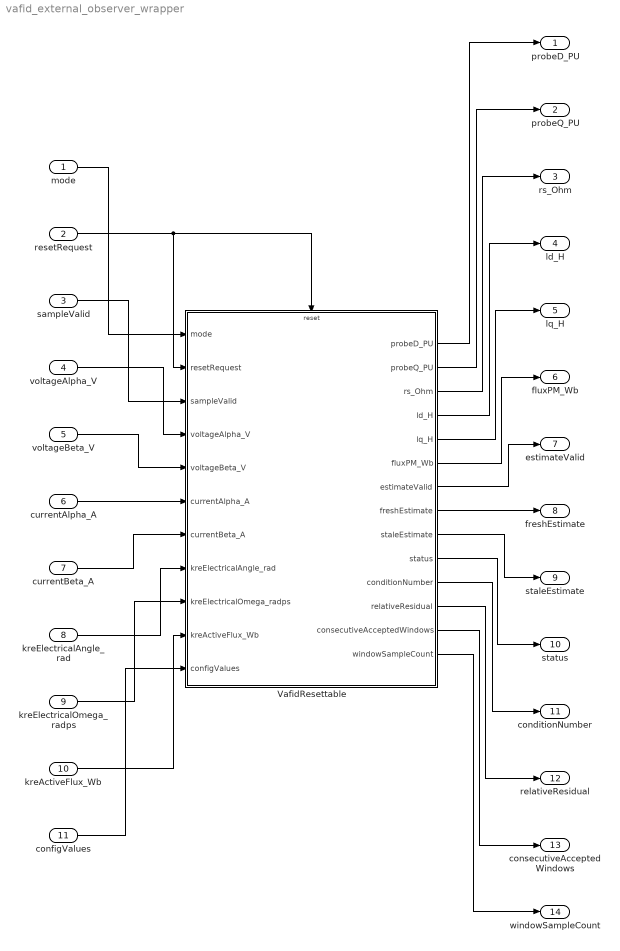
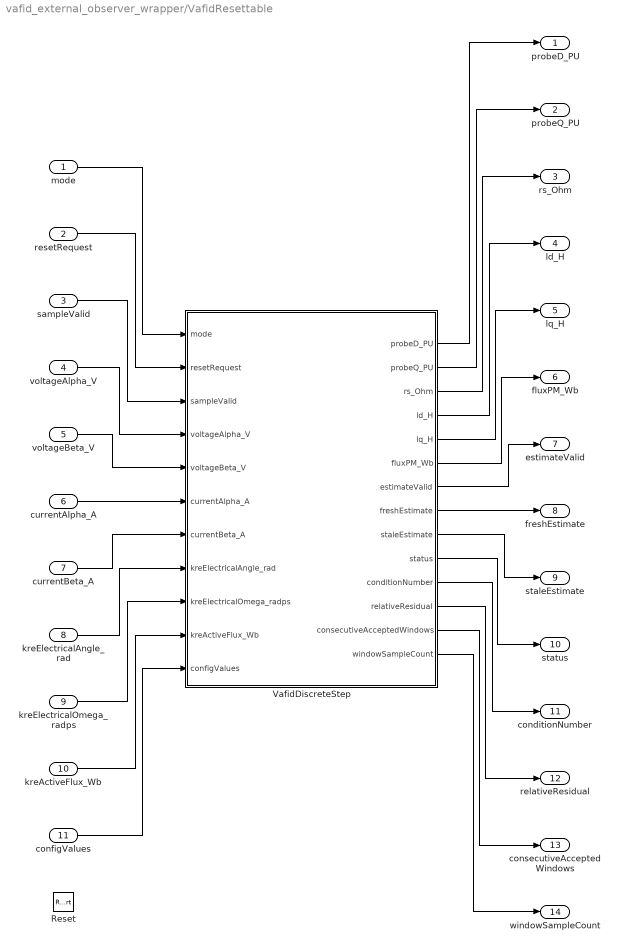
== matlab function vafid_external_observer_wrapper/VafidResettable/VafidDiscreteStep ==
function [probeD_PU, probeQ_PU, rs_Ohm, ld_H, lq_H, fluxPM_Wb, estimateValid, freshEstimate, staleEstimate, status, conditionNumber, relativeResidual, consecutiveAcceptedWindows, windowSampleCount] = fcn(mode, resetRequest, sampleValid, voltageAlpha_V, voltageBeta_V, currentAlpha_A, currentBeta_A, kreElectricalAngle_rad, kreElectricalOmega_radps, kreActiveFlux_Wb, configValues)
%#codegen
[probeD_PU, probeQ_PU, rs_Ohm, ld_H, lq_H, fluxPM_Wb, estimateValid, freshEstimate, staleEstimate, status, conditionNumber, relativeResidual, consecutiveAcceptedWindows, windowSampleCount] = vafid_external_observer_wrapper_step(mode, resetRequest, sampleValid, voltageAlpha_V, voltageBeta_V, currentAlpha_A, currentBeta_A, kreElectricalAngle_rad, kreElectricalOmega_radps, kreActiveFlux_Wb, configValues);
end

/*
 * Academic License - for use in teaching, academic research, and meeting
 * course requirements at degree granting institutions only.  Not for
 * government, commercial, or other organizational use.
 *
 * File: vafid_external_observer_wrapper.c
 *
 * Code generated for Simulink model 'vafid_external_observer_wrapper'.
 *
 * Model version                  : 1.2
 * Simulink Coder version         : 26.1 (R2026a) 20-Nov-2025
 * C/C++ source code generated on : Fri Aug 28 00:13:18 2026
 *
 * Target selection: ert.tlc
 * Embedded hardware selection: ARM Compatible->ARM Cortex-M
 * Code generation objectives: Unspecified
 * Validation result: Not run
 */

#include "vafid_external_observer_wrapper.h"
#include "rtwtypes.h"
#include "vafid_external_observer_wrapper_types.h"
#include "vafid_external_observer_wrapper_private.h"
#include "rt_nonfinite.h"
#include <math.h>
#include <string.h>
#include "zero_crossing_types.h"

/* Block states (default storage) */
DW_vafid_external_observer_wr_T vafid_external_observer_wrap_DW;

/* Previous zero-crossings (trigger) states */
PrevZCX_vafid_external_observ_T vafid_external_observer_PrevZCX;

/* External inputs (root inport signals with default storage) */
ExtU_vafid_external_observer__T vafid_external_observer_wrapp_U;

/* External outputs (root outports fed by signals with default storage) */
ExtY_vafid_external_observer__T vafid_external_observer_wrapp_Y;

/* Real-time model */
static RT_MODEL_vafid_external_obser_T vafid_external_observer_wrap_M_;
RT_MODEL_vafid_external_obser_T *const vafid_external_observer_wrap_M =
  &vafid_external_observer_wrap_M_;

/* Forward declaration for local functions */
static boolean_T vafid_localConfigurationIsValid(const
  sXUMNpzAt0y7k62cD7EcU0C_vafid_T *config);
static real32_T vafid_external_observer_wra_mod(real32_T x);
static void vafid_external_observer_wra_sum(const real32_T x[9], real32_T y[3]);
static real32_T vafid_external_observer_maximum(const real32_T x[3]);
static void vafid_exte_localSolveParameters(const creal32_T voltageD[2], const
  creal32_T voltageQ[2], const creal32_T currentD[2], const creal32_T currentQ[2],
  real32_T meanElectricalOmega_radps, real32_T config_probeD_Frequency_Hz,
  real32_T config_probeQ_Frequency_Hz, real32_T candidate[3], boolean_T *solved,
  real32_T *conditionNumber, real32_T *relativeResidual);
static void v_vafid_discrete_reference_step(uint8_T mode, boolean_T resetRequest,
  boolean_T sampleValid, real32_T voltageAlpha_V, real32_T voltageBeta_V,
  real32_T currentAlpha_A, real32_T currentBeta_A, real32_T
  kreElectricalAngle_rad, real32_T kreElectricalOmega_radps, real32_T
  kreActiveFlux_Wb, const sXUMNpzAt0y7k62cD7EcU0C_vafid_T *config, real32_T
  *probeD_PU, real32_T *probeQ_PU, real32_T *rs_Ohm, real32_T *ld_H, real32_T
  *lq_H, real32_T *fluxPM_Wb, boolean_T *estimateValid, boolean_T *freshEstimate,
  boolean_T *staleEstimate, uint8_T *status, real32_T *conditionNumber, real32_T
  *relativeResidual, uint16_T *consecutiveAcceptedWindows, uint32_T
  *windowSampleCount);
real32_T rt_roundf_snf(real32_T u)
{
  real32_T y;
  if (fabsf(u) < 8.388608E+6F) {
    if (u >= 0.5F) {
      y = floorf(u + 0.5F);
    } else if (u > -0.5F) {
      y = u * 0.0F;
    } else {
      y = ceilf(u - 0.5F);
    }
  } else {
    y = u;
  }

  return y;
}

/* Function for MATLAB Function: '<S1>/VafidDiscreteStep' */
static boolean_T vafid_localConfigurationIsValid(const
  sXUMNpzAt0y7k62cD7EcU0C_vafid_T *config)
{
  return !rtIsInfF(config->sampleTime_s) && !rtIsNaNF(config->sampleTime_s) &&
    ((config->sampleTime_s > 0.0F) && (!rtIsInfF(config->probeD_Frequency_Hz) &&
      !rtIsNaNF(config->probeD_Frequency_Hz) && ((config->probeD_Frequency_Hz >
        0.0F) && (!rtIsInfF(config->probeQ_Frequency_Hz) && !rtIsNaNF
                  (config->probeQ_Frequency_Hz) && ((config->probeQ_Frequency_Hz
          > 0.0F) && (config->probeD_Frequency_Hz != config->probeQ_Frequency_Hz)
         && (!rtIsInfF(config->probeD_Amplitude_PU) && !rtIsNaNF
             (config->probeD_Amplitude_PU) && (!rtIsInfF
           (config->probeQ_Amplitude_PU) && !rtIsNaNF
           (config->probeQ_Amplitude_PU) && (!rtIsInfF
            (config->probeD_MaxAmplitude_PU) && !rtIsNaNF
            (config->probeD_MaxAmplitude_PU) && ((config->probeD_MaxAmplitude_PU
              > 0.0F) && (!rtIsInfF(config->probeQ_MaxAmplitude_PU) && !rtIsNaNF
              (config->probeQ_MaxAmplitude_PU) &&
              ((config->probeQ_MaxAmplitude_PU > 0.0F) &&
               (config->windowLength_samples > 0U) &&
               (config->requiredAcceptedWindows > 0) &&
               (config->staleRejectedWindows > 0) && (!rtIsInfF
    (config->parameterFusion) && !rtIsNaNF(config->parameterFusion) &&
    ((config->parameterFusion > 0.0F) && (config->parameterFusion <= 1.0F) &&
     (!rtIsInfF(config->fluxFusion) && !rtIsNaNF(config->fluxFusion) &&
      ((config->fluxFusion > 0.0F) && (config->fluxFusion <= 1.0F) && (!rtIsInfF
    (config->conditionLimit) && !rtIsNaNF(config->conditionLimit) &&
    ((config->conditionLimit > 1.0F) && (!rtIsInfF(config->relativeResidualLimit)
    && !rtIsNaNF(config->relativeResidualLimit) &&
    ((config->relativeResidualLimit > 0.0F) && (config->minimumRs_Ohm > 0.0F) &&
     (config->maximumRs_Ohm > config->minimumRs_Ohm) && (config->minimumLd_H >
    0.0F) && (config->maximumLd_H > config->minimumLd_H) && (config->minimumLq_H
    > 0.0F) && (config->maximumLq_H > config->minimumLq_H) &&
     (config->minimumFluxPM_Wb > 0.0F) && (config->maximumFluxPM_Wb >
    config->minimumFluxPM_Wb))))))))))))))))))));
}

/* Function for MATLAB Function: '<S1>/VafidDiscreteStep' */
static real32_T vafid_external_observer_wra_mod(real32_T x)
{
  real32_T r;
  if (rtIsNaNF(x)) {
    r = (rtNaNF);
  } else if (rtIsInfF(x)) {
    r = (rtNaNF);
  } else {
    real32_T q;
    q = fabsf(x / 6.2831855F);
    if (fabsf(q - floorf(q + 0.5F)) > 1.1920929E-7F * q) {
      r = fmodf(x, 6.2831855F);
    } else {
      r = 0.0F;
    }

    if (r == 0.0F) {
      r = 0.0F;
    } else if (r < 0.0F) {
      r += 6.2831855F;
    }
  }

  return r;
}

/* Function for MATLAB Function: '<S1>/VafidDiscreteStep' */
static void vafid_external_observer_wra_sum(const real32_T x[9], real32_T y[3])
{
  int32_T xi;
  for (xi = 0; xi < 3; xi++) {
    int32_T xpageoffset;
    xpageoffset = xi * 3;
    y[xi] = (x[xpageoffset + 1] + x[xpageoffset]) + x[xpageoffset + 2];
  }
}

/* Function for MATLAB Function: '<S1>/VafidDiscreteStep' */
static real32_T vafid_external_observer_maximum(const real32_T x[3])
{
  int32_T idx;
  int32_T k;
  real32_T ex;
  if (!rtIsNaNF(x[0])) {
    idx = 1;
  } else {
    boolean_T exitg1;
    idx = 0;
    k = 2;
    exitg1 = false;
    while (!exitg1 && (k < 4)) {
      if (!rtIsNaNF(x[k - 1])) {
        idx = k;
        exitg1 = true;
      } else {
        k++;
      }
    }
  }

  if (idx == 0) {
    ex = x[0];
  } else {
    ex = x[idx - 1];
    for (k = idx + 1; k < 4; k++) {
      real32_T x_0;
      x_0 = x[k - 1];
      if (ex < x_0) {
        ex = x_0;
      }
    }
  }

  return ex;
}

/* Function for MATLAB Function: '<S1>/VafidDiscreteStep' */
static void vafid_exte_localSolveParameters(const creal32_T voltageD[2], const
  creal32_T voltageQ[2], const creal32_T currentD[2], const creal32_T currentQ[2],
  real32_T meanElectricalOmega_radps, real32_T config_probeD_Frequency_Hz,
  real32_T config_probeQ_Frequency_Hz, real32_T candidate[3], boolean_T *solved,
  real32_T *conditionNumber, real32_T *relativeResidual)
{
  int32_T b_k;
  int32_T columnIndex;
  int32_T k;
  real32_T normalMatrix_tmp[24];
  real32_T regression[24];
  real32_T scaledRegression[24];
  real32_T b_y[9];
  real32_T inverseNormalMatrix[9];
  real32_T normalMatrix[9];
  real32_T observation[8];
  real32_T residual[8];
  real32_T columnScale[3];
  real32_T tmp[3];
  real32_T tmp_0[3];
  real32_T c13;
  real32_T determinant;
  real32_T probeOmega_radps_idx_0;
  real32_T probeOmega_radps_idx_1;
  boolean_T c[3];
  boolean_T d[3];
  boolean_T exitg1;
  boolean_T guard1;
  boolean_T y;
  candidate[0] = 0.0F;
  candidate[1] = 0.0F;
  candidate[2] = 0.0F;
  probeOmega_radps_idx_0 = 6.2831855F * config_probeD_Frequency_Hz;
  probeOmega_radps_idx_1 = 6.2831855F * config_probeQ_Frequency_Hz;
  regression[0] = currentD[0].re;
  regression[8] = -probeOmega_radps_idx_0 * currentD[0].im;
  regression[16] = -meanElectricalOmega_radps * currentQ[0].re;
  regression[1] = currentD[0].im;
  regression[9] = probeOmega_radps_idx_0 * currentD[0].re;
  regression[17] = -meanElectricalOmega_radps * currentQ[0].im;
  regression[2] = currentQ[0].re;
  regression[10] = meanElectricalOmega_radps * currentD[0].re;
  regression[18] = -probeOmega_radps_idx_0 * currentQ[0].im;
  regression[3] = currentQ[0].im;
  regression[11] = meanElectricalOmega_radps * currentD[0].im;
  regression[19] = probeOmega_radps_idx_0 * currentQ[0].re;
  observation[0] = voltageD[0].re;
  observation[1] = voltageD[0].im;
  observation[2] = voltageQ[0].re;
  observation[3] = voltageQ[0].im;
  regression[4] = currentD[1].re;
  regression[12] = -probeOmega_radps_idx_1 * currentD[1].im;
  regression[20] = -meanElectricalOmega_radps * currentQ[1].re;
  regression[5] = currentD[1].im;
  regression[13] = probeOmega_radps_idx_1 * currentD[1].re;
  regression[21] = -meanElectricalOmega_radps * currentQ[1].im;
  regression[6] = currentQ[1].re;
  regression[14] = meanElectricalOmega_radps * currentD[1].re;
  regression[22] = -probeOmega_radps_idx_1 * currentQ[1].im;
  regression[7] = currentQ[1].im;
  regression[15] = meanElectricalOmega_radps * currentD[1].im;
  regression[23] = probeOmega_radps_idx_1 * currentQ[1].re;
  observation[4] = voltageD[1].re;
  observation[5] = voltageD[1].im;
  observation[6] = voltageQ[1].re;
  observation[7] = voltageQ[1].im;
  memset(&scaledRegression[0], 0, 24U * sizeof(real32_T));
  for (columnIndex = 0; columnIndex < 3; columnIndex++) {
    for (k = 0; k < 8; k++) {
      residual[k] = fabsf(regression[(columnIndex << 3) + k]);
    }

    if (!rtIsNaNF(residual[0])) {
      k = 1;
    } else {
      k = 0;
      b_k = 2;
      exitg1 = false;
      while (!exitg1 && (b_k < 9)) {
        if (!rtIsNaNF(residual[b_k - 1])) {
          k = b_k;
          exitg1 = true;
        } else {
          b_k++;
        }
      }
    }

    if (k == 0) {
      probeOmega_radps_idx_1 = residual[0];
      columnScale[columnIndex] = residual[0];
    } else {
      probeOmega_radps_idx_1 = residual[k - 1];
      for (b_k = k + 1; b_k < 9; b_k++) {
        probeOmega_radps_idx_0 = residual[b_k - 1];
        if (probeOmega_radps_idx_1 < probeOmega_radps_idx_0) {
          probeOmega_radps_idx_1 = probeOmega_radps_idx_0;
        }
      }

      columnScale[columnIndex] = probeOmega_radps_idx_1;
    }

    if (probeOmega_radps_idx_1 > 1.0E-12F) {
      for (k = 0; k < 8; k++) {
        b_k = (columnIndex << 3) + k;
        scaledRegression[b_k] = regression[b_k] / probeOmega_radps_idx_1;
      }
    }
  }

  for (k = 0; k < 8; k++) {
    normalMatrix_tmp[3 * k] = scaledRegression[k];
    normalMatrix_tmp[3 * k + 1] = scaledRegression[k + 8];
    normalMatrix_tmp[3 * k + 2] = scaledRegression[k + 16];
  }

  for (k = 0; k < 3; k++) {
    probeOmega_radps_idx_1 = 0.0F;
    c13 = 0.0F;
    determinant = 0.0F;
    for (columnIndex = 0; columnIndex < 8; columnIndex++) {
      probeOmega_radps_idx_0 = scaledRegression[(k << 3) + columnIndex];
      probeOmega_radps_idx_1 += normalMatrix_tmp[3 * columnIndex] *
        probeOmega_radps_idx_0;
      c13 += normalMatrix_tmp[3 * columnIndex + 1] * probeOmega_radps_idx_0;
      determinant += normalMatrix_tmp[3 * columnIndex + 2] *
        probeOmega_radps_idx_0;
    }

    normalMatrix[3 * k + 2] = determinant;
    normalMatrix[3 * k + 1] = c13;
    normalMatrix[3 * k] = probeOmega_radps_idx_1;
  }

  probeOmega_radps_idx_0 = normalMatrix[4] * normalMatrix[8] - normalMatrix[5] *
    normalMatrix[7];
  probeOmega_radps_idx_1 = normalMatrix[2] * normalMatrix[7] - normalMatrix[1] *
    normalMatrix[8];
  c13 = normalMatrix[1] * normalMatrix[5] - normalMatrix[2] * normalMatrix[4];
  determinant = (normalMatrix[0] * probeOmega_radps_idx_0 + normalMatrix[3] *
                 probeOmega_radps_idx_1) + normalMatrix[6] * c13;
  guard1 = false;
  if (!rtIsInfF(determinant) && !rtIsNaNF(determinant) && (fabsf(determinant) >
       1.0E-9F)) {
    inverseNormalMatrix[0] = probeOmega_radps_idx_0 / determinant;
    inverseNormalMatrix[3] = (normalMatrix[5] * normalMatrix[6] - normalMatrix[3]
      * normalMatrix[8]) / determinant;
    inverseNormalMatrix[6] = (normalMatrix[3] * normalMatrix[7] - normalMatrix[4]
      * normalMatrix[6]) / determinant;
    inverseNormalMatrix[1] = probeOmega_radps_idx_1 / determinant;
    inverseNormalMatrix[4] = (normalMatrix[0] * normalMatrix[8] - normalMatrix[2]
      * normalMatrix[6]) / determinant;
    inverseNormalMatrix[7] = (normalMatrix[1] * normalMatrix[6] - normalMatrix[0]
      * normalMatrix[7]) / determinant;
    inverseNormalMatrix[2] = c13 / determinant;
    inverseNormalMatrix[5] = (normalMatrix[2] * normalMatrix[3] - normalMatrix[0]
      * normalMatrix[5]) / determinant;
    inverseNormalMatrix[8] = (normalMatrix[0] * normalMatrix[4] - normalMatrix[1]
      * normalMatrix[3]) / determinant;
    y = false;
    columnIndex = 0;
    exitg1 = false;
    while (!exitg1 && (columnIndex < 3)) {
      if (columnScale[columnIndex] <= 1.0E-12F) {
        y = true;
        exitg1 = true;
      } else {
        columnIndex++;
      }
    }

    if (y) {
      guard1 = true;
    } else {
      for (columnIndex = 0; columnIndex < 9; columnIndex++) {
        b_y[columnIndex] = fabsf(normalMatrix[columnIndex]);
        normalMatrix[columnIndex] = fabsf(inverseNormalMatrix[columnIndex]);
      }

      vafid_external_observer_wra_sum(b_y, tmp);
      vafid_external_observer_wra_sum(normalMatrix, tmp_0);
      *conditionNumber = sqrtf(fmaxf(vafid_external_observer_maximum(tmp) *
        vafid_external_observer_maximum(tmp_0), 0.0F));
      probeOmega_radps_idx_1 = 0.0F;
      c13 = 0.0F;
      determinant = 0.0F;
      for (k = 0; k < 8; k++) {
        probeOmega_radps_idx_0 = observation[k];
        probeOmega_radps_idx_1 += normalMatrix_tmp[3 * k] *
          probeOmega_radps_idx_0;
        c13 += normalMatrix_tmp[3 * k + 1] * probeOmega_radps_idx_0;
        determinant += normalMatrix_tmp[3 * k + 2] * probeOmega_radps_idx_0;
      }

      for (k = 0; k < 3; k++) {
        candidate[k] = ((inverseNormalMatrix[k + 3] * c13 +
                         inverseNormalMatrix[k] * probeOmega_radps_idx_1) +
                        inverseNormalMatrix[k + 6] * determinant) /
          columnScale[k];
      }

      probeOmega_radps_idx_0 = candidate[1];
      probeOmega_radps_idx_1 = candidate[0];
      c13 = candidate[2];
      for (k = 0; k < 8; k++) {
        determinant = observation[k];
        residual[k] = ((regression[k + 8] * probeOmega_radps_idx_0 +
                        regression[k] * probeOmega_radps_idx_1) + regression[k +
                       16] * c13) - determinant;
        observation[k] = determinant * determinant;
      }

      probeOmega_radps_idx_1 = observation[0];
      for (columnIndex = 0; columnIndex < 7; columnIndex++) {
        probeOmega_radps_idx_1 += observation[columnIndex + 1];
      }

      for (k = 0; k < 8; k++) {
        probeOmega_radps_idx_0 = residual[k];
        residual[k] = probeOmega_radps_idx_0 * probeOmega_radps_idx_0;
      }

      probeOmega_radps_idx_0 = residual[0];
      for (columnIndex = 0; columnIndex < 7; columnIndex++) {
        probeOmega_radps_idx_0 += residual[columnIndex + 1];
      }

      *relativeResidual = sqrtf(probeOmega_radps_idx_0) / fmaxf(sqrtf
        (probeOmega_radps_idx_1), 1.0E-12F);
      c[0] = !rtIsInfF(candidate[0]);
      d[0] = !rtIsNaNF(candidate[0]);
      c[1] = !rtIsInfF(candidate[1]);
      d[1] = !rtIsNaNF(candidate[1]);
      c[2] = !rtIsInfF(candidate[2]);
      d[2] = !rtIsNaNF(candidate[2]);
      y = true;
      columnIndex = 0;
      exitg1 = false;
      while (!exitg1 && (columnIndex < 3)) {
        if (!c[columnIndex] || !d[columnIndex]) {
          y = false;
          exitg1 = true;
        } else {
          columnIndex++;
        }
      }

      *solved = (y && (!rtIsInfF(*conditionNumber) && (!rtIsInfF
        (*relativeResidual) && !rtIsNaNF(*relativeResidual))));
    }
  } else {
    guard1 = true;
  }

  if (guard1) {
    *solved = false;
    *conditionNumber = (rtInfF);
    *relativeResidual = (rtInfF);
  }
}

/* Function for MATLAB Function: '<S1>/VafidDiscreteStep' */
static void v_vafid_discrete_reference_step(uint8_T mode, boolean_T resetRequest,
  boolean_T sampleValid, real32_T voltageAlpha_V, real32_T voltageBeta_V,
  real32_T currentAlpha_A, real32_T currentBeta_A, real32_T
  kreElectricalAngle_rad, real32_T kreElectricalOmega_radps, real32_T
  kreActiveFlux_Wb, const sXUMNpzAt0y7k62cD7EcU0C_vafid_T *config, real32_T
  *probeD_PU, real32_T *probeQ_PU, real32_T *rs_Ohm, real32_T *ld_H, real32_T
  *lq_H, real32_T *fluxPM_Wb, boolean_T *estimateValid, boolean_T *freshEstimate,
  boolean_T *staleEstimate, uint8_T *status, real32_T *conditionNumber, real32_T
  *relativeResidual, uint16_T *consecutiveAcceptedWindows, uint32_T
  *windowSampleCount)
{
  creal32_T phasorScale_0[2];
  creal32_T phasorScale_1[2];
  creal32_T phasorScale_2[2];
  creal32_T phasorScale_3[2];
  int32_T i;
  int32_T phasorReal_tmp;
  real32_T candidate[3];
  real32_T phaseCosine[2];
  real32_T phaseSine[2];
  real32_T cosAngle;
  real32_T phasorScale;
  real32_T predictedAngle_rad;
  real32_T probeQ_PU_tmp;
  real32_T signals_idx_0;
  real32_T signals_idx_1;
  real32_T sinAngle;
  uint32_T qY;
  boolean_T solved;
  if (!vafid_external_observer_wrap_DW.rsEstimate_Ohm_not_empty) {
    vafid_external_observer_wrap_DW.rsEstimate_Ohm = config->nominalRs_Ohm;
    vafid_external_observer_wrap_DW.rsEstimate_Ohm_not_empty = true;
  }

  if (!vafid_external_observer_wrap_DW.ldEstimate_H_not_empty) {
    vafid_external_observer_wrap_DW.ldEstimate_H = config->nominalLd_H;
    vafid_external_observer_wrap_DW.ldEstimate_H_not_empty = true;
  }

  if (!vafid_external_observer_wrap_DW.lqEstimate_H_not_empty) {
    vafid_external_observer_wrap_DW.lqEstimate_H = config->nominalLq_H;
    vafid_external_observer_wrap_DW.lqEstimate_H_not_empty = true;
  }

  if (!vafid_external_observer_wrap_DW.fluxEstimate_Wb_not_empty) {
    vafid_external_observer_wrap_DW.fluxEstimate_Wb = config->nominalFluxPM_Wb;
    vafid_external_observer_wrap_DW.fluxEstimate_Wb_not_empty = true;
  }

  *probeD_PU = 0.0F;
  *probeQ_PU = 0.0F;
  *freshEstimate = false;
  if (resetRequest) {
    vafid_external_observer_wrap_DW.phaseD_rad = 0.0F;
    vafid_external_observer_wrap_DW.phaseQ_rad = 0.0F;
    vafid_external_observer_wrap_DW.trackedAngle_rad = 0.0F;
    vafid_external_observer_wrap_DW.filteredOmega_radps = 0.0F;
    vafid_external_observer_wrap_DW.filteredActiveFlux_Wb = 0.0F;
    vafid_external_observer_wrap_DW.activeFluxInitialized = false;
    vafid_external_observer_wrap_DW.angleInitialized = false;
    for (i = 0; i < 8; i++) {
      vafid_external_observer_wrap_DW.phasorReal[i] = 0.0F;
      vafid_external_observer_wrap_DW.phasorImag[i] = 0.0F;
    }

    vafid_external_observer_wrap_DW.sumOmega_radps = 0.0F;
    vafid_external_observer_wrap_DW.sumId_A = 0.0F;
    vafid_external_observer_wrap_DW.settleSampleCount = 0U;
    vafid_external_observer_wrap_DW.accumulatedSampleCount = 0U;
    vafid_external_observer_wrap_DW.rsEstimate_Ohm = config->nominalRs_Ohm;
    vafid_external_observer_wrap_DW.ldEstimate_H = config->nominalLd_H;
    vafid_external_observer_wrap_DW.lqEstimate_H = config->nominalLq_H;
    vafid_external_observer_wrap_DW.fluxEstimate_Wb = config->nominalFluxPM_Wb;
    vafid_external_observer_wrap_DW.acceptedWindowCount = 0U;
    vafid_external_observer_wrap_DW.rejectedWindowCount = 0U;
    vafid_external_observer_wrap_DW.estimateIsCurrent = false;
    vafid_external_observer_wrap_DW.wasEnabled = false;
    vafid_external_observer_wrap_DW.lastConditionNumber = (rtInfF);
    vafid_external_observer_wrap_DW.lastRelativeResidual = (rtInfF);
    *status = 1U;
    *rs_Ohm = vafid_external_observer_wrap_DW.rsEstimate_Ohm;
    *ld_H = vafid_external_observer_wrap_DW.ldEstimate_H;
    *lq_H = vafid_external_observer_wrap_DW.lqEstimate_H;
    *fluxPM_Wb = vafid_external_observer_wrap_DW.fluxEstimate_Wb;
    *conditionNumber = (rtInfF);
    *relativeResidual = (rtInfF);
    *consecutiveAcceptedWindows = 0U;
    *windowSampleCount = 0U;
    *estimateValid = false;
    *staleEstimate = true;
  } else if (mode == 0) {
    vafid_external_observer_wrap_DW.phaseD_rad = 0.0F;
    vafid_external_observer_wrap_DW.phaseQ_rad = 0.0F;
    for (i = 0; i < 8; i++) {
      vafid_external_observer_wrap_DW.phasorReal[i] = 0.0F;
      vafid_external_observer_wrap_DW.phasorImag[i] = 0.0F;
    }

    vafid_external_observer_wrap_DW.sumOmega_radps = 0.0F;
    vafid_external_observer_wrap_DW.sumId_A = 0.0F;
    vafid_external_observer_wrap_DW.settleSampleCount = 0U;
    vafid_external_observer_wrap_DW.accumulatedSampleCount = 0U;
    vafid_external_observer_wrap_DW.acceptedWindowCount = 0U;
    vafid_external_observer_wrap_DW.rejectedWindowCount = 0U;
    vafid_external_observer_wrap_DW.estimateIsCurrent = false;
    vafid_external_observer_wrap_DW.wasEnabled = false;
    vafid_external_observer_wrap_DW.angleInitialized = false;
    vafid_external_observer_wrap_DW.activeFluxInitialized = false;
    *status = 0U;
    *rs_Ohm = vafid_external_observer_wrap_DW.rsEstimate_Ohm;
    *ld_H = vafid_external_observer_wrap_DW.ldEstimate_H;
    *lq_H = vafid_external_observer_wrap_DW.lqEstimate_H;
    *fluxPM_Wb = vafid_external_observer_wrap_DW.fluxEstimate_Wb;
    *conditionNumber = vafid_external_observer_wrap_DW.lastConditionNumber;
    *relativeResidual = vafid_external_observer_wrap_DW.lastRelativeResidual;
    *consecutiveAcceptedWindows = 0U;
    *windowSampleCount = 0U;
    *estimateValid = false;
    *staleEstimate = true;
  } else if (!vafid_localConfigurationIsValid(config) || (!sampleValid ||
              (rtIsInfF(voltageAlpha_V) || rtIsNaNF(voltageAlpha_V) || (rtIsInfF
                (voltageBeta_V) || rtIsNaNF(voltageBeta_V) || (rtIsInfF
      (currentAlpha_A) || rtIsNaNF(currentAlpha_A) || (rtIsInfF(currentBeta_A) ||
    rtIsNaNF(currentBeta_A) || (rtIsInfF(kreElectricalAngle_rad) || rtIsNaNF
      (kreElectricalAngle_rad) || (rtIsInfF(kreElectricalOmega_radps) ||
      rtIsNaNF(kreElectricalOmega_radps) || (rtIsInfF(kreActiveFlux_Wb) ||
      rtIsNaNF(kreActiveFlux_Wb)))))))))) {
    vafid_external_observer_wrap_DW.phaseD_rad = 0.0F;
    vafid_external_observer_wrap_DW.phaseQ_rad = 0.0F;
    for (i = 0; i < 8; i++) {
      vafid_external_observer_wrap_DW.phasorReal[i] = 0.0F;
      vafid_external_observer_wrap_DW.phasorImag[i] = 0.0F;
    }

    vafid_external_observer_wrap_DW.sumOmega_radps = 0.0F;
    vafid_external_observer_wrap_DW.sumId_A = 0.0F;
    vafid_external_observer_wrap_DW.settleSampleCount = 0U;
    vafid_external_observer_wrap_DW.accumulatedSampleCount = 0U;
    vafid_external_observer_wrap_DW.acceptedWindowCount = 0U;
    vafid_external_observer_wrap_DW.rejectedWindowCount = 0U;
    vafid_external_observer_wrap_DW.estimateIsCurrent = false;
    vafid_external_observer_wrap_DW.wasEnabled = false;
    vafid_external_observer_wrap_DW.angleInitialized = false;
    vafid_external_observer_wrap_DW.activeFluxInitialized = false;
    *status = 8U;
    *rs_Ohm = vafid_external_observer_wrap_DW.rsEstimate_Ohm;
    *ld_H = vafid_external_observer_wrap_DW.ldEstimate_H;
    *lq_H = vafid_external_observer_wrap_DW.lqEstimate_H;
    *fluxPM_Wb = vafid_external_observer_wrap_DW.fluxEstimate_Wb;
    *conditionNumber = vafid_external_observer_wrap_DW.lastConditionNumber;
    *relativeResidual = vafid_external_observer_wrap_DW.lastRelativeResidual;
    *consecutiveAcceptedWindows = 0U;
    *windowSampleCount = 0U;
    *estimateValid = false;
    *staleEstimate = true;
  } else {
    if (!vafid_external_observer_wrap_DW.wasEnabled) {
      vafid_external_observer_wrap_DW.phaseD_rad = 0.0F;
      vafid_external_observer_wrap_DW.phaseQ_rad = 0.0F;
      vafid_external_observer_wrap_DW.trackedAngle_rad = kreElectricalAngle_rad;
      vafid_external_observer_wrap_DW.trackedAngle_rad =
        vafid_external_observer_wra_mod
        (vafid_external_observer_wrap_DW.trackedAngle_rad + 3.1415927F) -
        3.1415927F;
      vafid_external_observer_wrap_DW.filteredOmega_radps =
        kreElectricalOmega_radps;
      vafid_external_observer_wrap_DW.filteredActiveFlux_Wb = kreActiveFlux_Wb;
      vafid_external_observer_wrap_DW.activeFluxInitialized = true;
      vafid_external_observer_wrap_DW.angleInitialized = true;
      for (i = 0; i < 8; i++) {
        vafid_external_observer_wrap_DW.phasorReal[i] = 0.0F;
        vafid_external_observer_wrap_DW.phasorImag[i] = 0.0F;
      }

      vafid_external_observer_wrap_DW.sumOmega_radps = 0.0F;
      vafid_external_observer_wrap_DW.sumId_A = 0.0F;
      vafid_external_observer_wrap_DW.settleSampleCount = 0U;
      vafid_external_observer_wrap_DW.accumulatedSampleCount = 0U;
      vafid_external_observer_wrap_DW.acceptedWindowCount = 0U;
      vafid_external_observer_wrap_DW.rejectedWindowCount = 0U;
      vafid_external_observer_wrap_DW.estimateIsCurrent = false;
      vafid_external_observer_wrap_DW.wasEnabled = true;
    }

    phasorScale = sinf(vafid_external_observer_wrap_DW.phaseD_rad);
    *probeD_PU = fminf(fabsf(config->probeD_Amplitude_PU),
                       config->probeD_MaxAmplitude_PU) * phasorScale;
    probeQ_PU_tmp = sinf(vafid_external_observer_wrap_DW.phaseQ_rad);
    *probeQ_PU = fminf(fabsf(config->probeQ_Amplitude_PU),
                       config->probeQ_MaxAmplitude_PU) * probeQ_PU_tmp;
    vafid_external_observer_wrap_DW.filteredOmega_radps += (1.0F - expf
      (-6.2831855F * config->omegaLpf_Hz * config->sampleTime_s)) *
      (kreElectricalOmega_radps -
       vafid_external_observer_wrap_DW.filteredOmega_radps);
    if (!vafid_external_observer_wrap_DW.angleInitialized) {
      vafid_external_observer_wrap_DW.trackedAngle_rad = kreElectricalAngle_rad;
      vafid_external_observer_wrap_DW.trackedAngle_rad =
        vafid_external_observer_wra_mod
        (vafid_external_observer_wrap_DW.trackedAngle_rad + 3.1415927F) -
        3.1415927F;
      vafid_external_observer_wrap_DW.angleInitialized = true;
    } else {
      predictedAngle_rad = vafid_external_observer_wra_mod((config->sampleTime_s
        * vafid_external_observer_wrap_DW.filteredOmega_radps +
        vafid_external_observer_wrap_DW.trackedAngle_rad) + 3.1415927F) -
        3.1415927F;
      vafid_external_observer_wrap_DW.trackedAngle_rad = (1.0F - expf
        (-6.2831855F * config->angleTrack_Hz * config->sampleTime_s)) *
        (vafid_external_observer_wra_mod((kreElectricalAngle_rad -
           predictedAngle_rad) + 3.1415927F) - 3.1415927F) + predictedAngle_rad;
      vafid_external_observer_wrap_DW.trackedAngle_rad =
        vafid_external_observer_wra_mod
        (vafid_external_observer_wrap_DW.trackedAngle_rad + 3.1415927F) -
        3.1415927F;
    }

    if (!vafid_external_observer_wrap_DW.activeFluxInitialized) {
      vafid_external_observer_wrap_DW.filteredActiveFlux_Wb = kreActiveFlux_Wb;
      vafid_external_observer_wrap_DW.activeFluxInitialized = true;
    } else {
      vafid_external_observer_wrap_DW.filteredActiveFlux_Wb += (1.0F - expf
        (-6.2831855F * config->activeFluxLpf_Hz * config->sampleTime_s)) *
        (kreActiveFlux_Wb -
         vafid_external_observer_wrap_DW.filteredActiveFlux_Wb);
    }

    cosAngle = cosf(vafid_external_observer_wrap_DW.trackedAngle_rad);
    sinAngle = sinf(vafid_external_observer_wrap_DW.trackedAngle_rad);
    predictedAngle_rad = cosAngle * currentAlpha_A + sinAngle * currentBeta_A;
    signals_idx_0 = rt_roundf_snf(config->settleTime_s / config->sampleTime_s);
    if (signals_idx_0 < 4.2949673E+9F) {
      if (signals_idx_0 >= 0.0F) {
        qY = (uint32_T)signals_idx_0;
      } else {
        qY = 0U;
      }
    } else {
      qY = MAX_uint32_T;
    }

    if (vafid_external_observer_wrap_DW.settleSampleCount < qY) {
      vafid_external_observer_wrap_DW.settleSampleCount++;
      *status = 2U;
    } else {
      signals_idx_0 = cosAngle * voltageAlpha_V + sinAngle * voltageBeta_V;
      signals_idx_1 = -sinAngle * voltageAlpha_V + cosAngle * voltageBeta_V;
      cosAngle = -sinAngle * currentAlpha_A + cosAngle * currentBeta_A;
      phaseCosine[0] = cosf(vafid_external_observer_wrap_DW.phaseD_rad);
      phaseCosine[1] = cosf(vafid_external_observer_wrap_DW.phaseQ_rad);
      phaseSine[0] = phasorScale;
      phaseSine[1] = probeQ_PU_tmp;
      for (i = 0; i < 2; i++) {
        phasorScale = phaseCosine[i];
        probeQ_PU_tmp = phaseSine[i];
        phasorReal_tmp = i << 2;
        vafid_external_observer_wrap_DW.phasorReal[phasorReal_tmp] +=
          signals_idx_0 * phasorScale;
        vafid_external_observer_wrap_DW.phasorImag[phasorReal_tmp] -=
          signals_idx_0 * probeQ_PU_tmp;
        vafid_external_observer_wrap_DW.phasorReal[phasorReal_tmp + 1] +=
          signals_idx_1 * phasorScale;
        vafid_external_observer_wrap_DW.phasorImag[phasorReal_tmp + 1] -=
          signals_idx_1 * probeQ_PU_tmp;
        vafid_external_observer_wrap_DW.phasorReal[phasorReal_tmp + 2] +=
          predictedAngle_rad * phasorScale;
        vafid_external_observer_wrap_DW.phasorImag[phasorReal_tmp + 2] -=
          predictedAngle_rad * probeQ_PU_tmp;
        vafid_external_observer_wrap_DW.phasorReal[phasorReal_tmp + 3] +=
          cosAngle * phasorScale;
        vafid_external_observer_wrap_DW.phasorImag[phasorReal_tmp + 3] -=
          cosAngle * probeQ_PU_tmp;
      }

      vafid_external_observer_wrap_DW.sumOmega_radps +=
        vafid_external_observer_wrap_DW.filteredOmega_radps;
      vafid_external_observer_wrap_DW.sumId_A += predictedAngle_rad;
      qY = vafid_external_observer_wrap_DW.accumulatedSampleCount +
        /*MW:OvSatOk*/ 1U;
      if (vafid_external_observer_wrap_DW.accumulatedSampleCount + 1U <
          vafid_external_observer_wrap_DW.accumulatedSampleCount) {
        qY = MAX_uint32_T;
      }

      vafid_external_observer_wrap_DW.accumulatedSampleCount = qY;
      *status = 3U;
      if (vafid_external_observer_wrap_DW.accumulatedSampleCount >=
          config->windowLength_samples) {
        phasorScale = 2.0F / (real32_T)config->windowLength_samples;
        predictedAngle_rad = vafid_external_observer_wrap_DW.sumId_A / (real32_T)
          config->windowLength_samples;
        phasorScale_0[0].re = phasorScale *
          vafid_external_observer_wrap_DW.phasorReal[0];
        phasorScale_0[0].im = phasorScale *
          vafid_external_observer_wrap_DW.phasorImag[0];
        phasorScale_1[0].re = phasorScale *
          vafid_external_observer_wrap_DW.phasorReal[1];
        phasorScale_1[0].im = phasorScale *
          vafid_external_observer_wrap_DW.phasorImag[1];
        phasorScale_2[0].re = phasorScale *
          vafid_external_observer_wrap_DW.phasorReal[2];
        phasorScale_2[0].im = phasorScale *
          vafid_external_observer_wrap_DW.phasorImag[2];
        phasorScale_3[0].re = phasorScale *
          vafid_external_observer_wrap_DW.phasorReal[3];
        phasorScale_3[0].im = phasorScale *
          vafid_external_observer_wrap_DW.phasorImag[3];
        phasorScale_0[1].re = phasorScale *
          vafid_external_observer_wrap_DW.phasorReal[4];
        phasorScale_0[1].im = phasorScale *
          vafid_external_observer_wrap_DW.phasorImag[4];
        phasorScale_1[1].re = phasorScale *
          vafid_external_observer_wrap_DW.phasorReal[5];
        phasorScale_1[1].im = phasorScale *
          vafid_external_observer_wrap_DW.phasorImag[5];
        phasorScale_2[1].re = phasorScale *
          vafid_external_observer_wrap_DW.phasorReal[6];
        phasorScale_2[1].im = phasorScale *
          vafid_external_observer_wrap_DW.phasorImag[6];
        phasorScale_3[1].re = phasorScale *
          vafid_external_observer_wrap_DW.phasorReal[7];
        phasorScale_3[1].im = phasorScale *
          vafid_external_observer_wrap_DW.phasorImag[7];
        vafid_exte_localSolveParameters(phasorScale_0, phasorScale_1,
          phasorScale_2, phasorScale_3,
          vafid_external_observer_wrap_DW.sumOmega_radps / (real32_T)
          config->windowLength_samples, config->probeD_Frequency_Hz,
          config->probeQ_Frequency_Hz, candidate, &solved,
          &vafid_external_observer_wrap_DW.lastConditionNumber,
          &vafid_external_observer_wrap_DW.lastRelativeResidual);
        phasorScale = vafid_external_observer_wrap_DW.filteredActiveFlux_Wb -
          (candidate[1] - candidate[2]) * predictedAngle_rad;
        if (!solved) {
          *status = 10U;
          vafid_external_observer_wrap_DW.acceptedWindowCount = 0U;
          if (vafid_external_observer_wrap_DW.rejectedWindowCount < 65535) {
            vafid_external_observer_wrap_DW.rejectedWindowCount++;
          }
        } else if (vafid_external_observer_wrap_DW.lastConditionNumber >=
                   config->conditionLimit) {
          *status = 5U;
          vafid_external_observer_wrap_DW.acceptedWindowCount = 0U;
          if (vafid_external_observer_wrap_DW.rejectedWindowCount < 65535) {
            vafid_external_observer_wrap_DW.rejectedWindowCount++;
          }
        } else if (vafid_external_observer_wrap_DW.lastRelativeResidual >=
                   config->relativeResidualLimit) {
          *status = 6U;
          vafid_external_observer_wrap_DW.acceptedWindowCount = 0U;
          if (vafid_external_observer_wrap_DW.rejectedWindowCount < 65535) {
            vafid_external_observer_wrap_DW.rejectedWindowCount++;
          }
        } else if (!(candidate[0] >= config->minimumRs_Ohm) || (!(candidate[0] <=
          config->maximumRs_Ohm) || (!(candidate[1] >= config->minimumLd_H) || (
                      !(candidate[1] <= config->maximumLd_H) || (!(candidate[2] >=
          config->minimumLq_H) || !(candidate[2] <= config->maximumLq_H))))) ||
                   (rtIsInfF(phasorScale) || rtIsNaNF(phasorScale) ||
                    (!(phasorScale >= config->minimumFluxPM_Wb) || !(phasorScale
          <= config->maximumFluxPM_Wb)))) {
          *status = 7U;
          vafid_external_observer_wrap_DW.acceptedWindowCount = 0U;
          if (vafid_external_observer_wrap_DW.rejectedWindowCount < 65535) {
            vafid_external_observer_wrap_DW.rejectedWindowCount++;
          }
        } else {
          vafid_external_observer_wrap_DW.rsEstimate_Ohm += (candidate[0] -
            vafid_external_observer_wrap_DW.rsEstimate_Ohm) *
            config->parameterFusion;
          vafid_external_observer_wrap_DW.ldEstimate_H += (candidate[1] -
            vafid_external_observer_wrap_DW.ldEstimate_H) *
            config->parameterFusion;
          vafid_external_observer_wrap_DW.lqEstimate_H += (candidate[2] -
            vafid_external_observer_wrap_DW.lqEstimate_H) *
            config->parameterFusion;
          if (vafid_external_observer_wrap_DW.acceptedWindowCount < 65535) {
            vafid_external_observer_wrap_DW.acceptedWindowCount++;
          }

          vafid_external_observer_wrap_DW.rejectedWindowCount = 0U;
          *status = 4U;
          *freshEstimate = true;
          if (vafid_external_observer_wrap_DW.acceptedWindowCount >=
              config->requiredAcceptedWindows) {
            vafid_external_observer_wrap_DW.fluxEstimate_Wb +=
              ((vafid_external_observer_wrap_DW.filteredActiveFlux_Wb -
                (vafid_external_observer_wrap_DW.ldEstimate_H -
                 vafid_external_observer_wrap_DW.lqEstimate_H) *
                predictedAngle_rad) -
               vafid_external_observer_wrap_DW.fluxEstimate_Wb) *
              config->fluxFusion;
            vafid_external_observer_wrap_DW.estimateIsCurrent = true;
          } else {
            vafid_external_observer_wrap_DW.estimateIsCurrent = false;
          }
        }

        vafid_external_observer_wrap_DW.estimateIsCurrent =
          ((vafid_external_observer_wrap_DW.rejectedWindowCount <
            config->staleRejectedWindows) &&
           vafid_external_observer_wrap_DW.estimateIsCurrent);
        for (i = 0; i < 8; i++) {
          vafid_external_observer_wrap_DW.phasorReal[i] = 0.0F;
          vafid_external_observer_wrap_DW.phasorImag[i] = 0.0F;
        }

        vafid_external_observer_wrap_DW.sumOmega_radps = 0.0F;
        vafid_external_observer_wrap_DW.sumId_A = 0.0F;
        vafid_external_observer_wrap_DW.accumulatedSampleCount = 0U;
      }
    }

    vafid_external_observer_wrap_DW.phaseD_rad += 6.2831855F *
      config->probeD_Frequency_Hz * config->sampleTime_s;
    vafid_external_observer_wrap_DW.phaseD_rad = vafid_external_observer_wra_mod
      (vafid_external_observer_wrap_DW.phaseD_rad + 3.1415927F) - 3.1415927F;
    vafid_external_observer_wrap_DW.phaseQ_rad += 6.2831855F *
      config->probeQ_Frequency_Hz * config->sampleTime_s;
    vafid_external_observer_wrap_DW.phaseQ_rad = vafid_external_observer_wra_mod
      (vafid_external_observer_wrap_DW.phaseQ_rad + 3.1415927F) - 3.1415927F;
    *rs_Ohm = vafid_external_observer_wrap_DW.rsEstimate_Ohm;
    *ld_H = vafid_external_observer_wrap_DW.ldEstimate_H;
    *lq_H = vafid_external_observer_wrap_DW.lqEstimate_H;
    *fluxPM_Wb = vafid_external_observer_wrap_DW.fluxEstimate_Wb;
    *conditionNumber = vafid_external_observer_wrap_DW.lastConditionNumber;
    *relativeResidual = vafid_external_observer_wrap_DW.lastRelativeResidual;
    *consecutiveAcceptedWindows =
      vafid_external_observer_wrap_DW.acceptedWindowCount;
    *windowSampleCount = vafid_external_observer_wrap_DW.accumulatedSampleCount;
    *estimateValid = vafid_external_observer_wrap_DW.estimateIsCurrent;
    *staleEstimate = !vafid_external_observer_wrap_DW.estimateIsCurrent;
  }
}

/* Model step function */
void vafid_external_observer_wrapper_step(void)
{
  sXUMNpzAt0y7k62cD7EcU0C_vafid_T expl_temp;
  int32_T i;
  real32_T tmp;

  /* Outputs for Resettable SubSystem: '<Root>/VafidResettable' incorporates:
   *  ResetPort: '<S1>/Reset'
   */
  /* Inport: '<Root>/resetRequest' */
  if (vafid_external_observer_wrapp_U.resetRequest &&
      (vafid_external_observer_PrevZCX.VafidResettable_Reset_ZCE != POS_ZCSIG))
  {
    /* SystemReset for MATLAB Function: '<S1>/VafidDiscreteStep' */
    vafid_external_observer_wrap_DW.rsEstimate_Ohm_not_empty = false;
    vafid_external_observer_wrap_DW.ldEstimate_H_not_empty = false;
    vafid_external_observer_wrap_DW.lqEstimate_H_not_empty = false;
    vafid_external_observer_wrap_DW.fluxEstimate_Wb_not_empty = false;
    vafid_external_observer_wrap_DW.phaseD_rad = 0.0F;
    vafid_external_observer_wrap_DW.phaseQ_rad = 0.0F;
    vafid_external_observer_wrap_DW.trackedAngle_rad = 0.0F;
    vafid_external_observer_wrap_DW.filteredOmega_radps = 0.0F;
    vafid_external_observer_wrap_DW.filteredActiveFlux_Wb = 0.0F;
    vafid_external_observer_wrap_DW.activeFluxInitialized = false;
    vafid_external_observer_wrap_DW.angleInitialized = false;
    for (i = 0; i < 8; i++) {
      vafid_external_observer_wrap_DW.phasorReal[i] = 0.0F;
      vafid_external_observer_wrap_DW.phasorImag[i] = 0.0F;
    }

    vafid_external_observer_wrap_DW.sumOmega_radps = 0.0F;
    vafid_external_observer_wrap_DW.sumId_A = 0.0F;
    vafid_external_observer_wrap_DW.settleSampleCount = 0U;
    vafid_external_observer_wrap_DW.accumulatedSampleCount = 0U;
    vafid_external_observer_wrap_DW.acceptedWindowCount = 0U;
    vafid_external_observer_wrap_DW.rejectedWindowCount = 0U;
    vafid_external_observer_wrap_DW.estimateIsCurrent = false;
    vafid_external_observer_wrap_DW.wasEnabled = false;
    vafid_external_observer_wrap_DW.lastConditionNumber = (rtInfF);
    vafid_external_observer_wrap_DW.lastRelativeResidual = (rtInfF);

    /* End of SystemReset for MATLAB Function: '<S1>/VafidDiscreteStep' */
  }

  vafid_external_observer_PrevZCX.VafidResettable_Reset_ZCE =
    vafid_external_observer_wrapp_U.resetRequest;

  /* MATLAB Function: '<S1>/VafidDiscreteStep' incorporates:
   *  Inport: '<Root>/configValues'
   *  Inport: '<Root>/currentAlpha_A'
   *  Inport: '<Root>/currentBeta_A'
   *  Inport: '<Root>/kreActiveFlux_Wb'
   *  Inport: '<Root>/kreElectricalAngle_rad'
   *  Inport: '<Root>/kreElectricalOmega_radps'
   *  Inport: '<Root>/mode'
   *  Inport: '<Root>/resetRequest'
   *  Inport: '<Root>/sampleValid'
   *  Inport: '<Root>/voltageAlpha_V'
   *  Inport: '<Root>/voltageBeta_V'
   *  Outport: '<Root>/conditionNumber'
   *  Outport: '<Root>/consecutiveAcceptedWindows'
   *  Outport: '<Root>/estimateValid'
   *  Outport: '<Root>/fluxPM_Wb'
   *  Outport: '<Root>/freshEstimate'
   *  Outport: '<Root>/ld_H'
   *  Outport: '<Root>/lq_H'
   *  Outport: '<Root>/probeD_PU'
   *  Outport: '<Root>/probeQ_PU'
   *  Outport: '<Root>/relativeResidual'
   *  Outport: '<Root>/rs_Ohm'
   *  Outport: '<Root>/staleEstimate'
   *  Outport: '<Root>/status'
   *  Outport: '<Root>/windowSampleCount'
   */
  expl_temp.maximumFluxPM_Wb = vafid_external_observer_wrapp_U.configValues[29];
  expl_temp.minimumFluxPM_Wb = vafid_external_observer_wrapp_U.configValues[28];
  expl_temp.maximumLq_H = vafid_external_observer_wrapp_U.configValues[27];
  expl_temp.minimumLq_H = vafid_external_observer_wrapp_U.configValues[26];
  expl_temp.maximumLd_H = vafid_external_observer_wrapp_U.configValues[25];
  expl_temp.minimumLd_H = vafid_external_observer_wrapp_U.configValues[24];
  expl_temp.maximumRs_Ohm = vafid_external_observer_wrapp_U.configValues[23];
  expl_temp.minimumRs_Ohm = vafid_external_observer_wrapp_U.configValues[22];
  expl_temp.nominalFluxPM_Wb = vafid_external_observer_wrapp_U.configValues[21];
  expl_temp.nominalLq_H = vafid_external_observer_wrapp_U.configValues[20];
  expl_temp.nominalLd_H = vafid_external_observer_wrapp_U.configValues[19];
  expl_temp.nominalRs_Ohm = vafid_external_observer_wrapp_U.configValues[18];
  tmp = rt_roundf_snf(vafid_external_observer_wrapp_U.configValues[17]);
  if (tmp < 65536.0F) {
    if (tmp >= 0.0F) {
      expl_temp.staleRejectedWindows = (uint16_T)tmp;
    } else {
      expl_temp.staleRejectedWindows = 0U;
    }
  } else {
    expl_temp.staleRejectedWindows = MAX_uint16_T;
  }

  tmp = rt_roundf_snf(vafid_external_observer_wrapp_U.configValues[16]);
  if (tmp < 65536.0F) {
    if (tmp >= 0.0F) {
      expl_temp.requiredAcceptedWindows = (uint16_T)tmp;
    } else {
      expl_temp.requiredAcceptedWindows = 0U;
    }
  } else {
    expl_temp.requiredAcceptedWindows = MAX_uint16_T;
  }

  expl_temp.relativeResidualLimit =
    vafid_external_observer_wrapp_U.configValues[15];
  expl_temp.conditionLimit = vafid_external_observer_wrapp_U.configValues[14];
  expl_temp.fluxFusion = vafid_external_observer_wrapp_U.configValues[13];
  expl_temp.parameterFusion = vafid_external_observer_wrapp_U.configValues[12];
  expl_temp.activeFluxLpf_Hz = vafid_external_observer_wrapp_U.configValues[11];
  expl_temp.angleTrack_Hz = vafid_external_observer_wrapp_U.configValues[10];
  expl_temp.omegaLpf_Hz = vafid_external_observer_wrapp_U.configValues[9];
  tmp = rt_roundf_snf(vafid_external_observer_wrapp_U.configValues[8]);
  if (tmp < 4.2949673E+9F) {
    if (tmp >= 0.0F) {
      expl_temp.windowLength_samples = (uint32_T)tmp;
    } else {
      expl_temp.windowLength_samples = 0U;
    }
  } else {
    expl_temp.windowLength_samples = MAX_uint32_T;
  }

  expl_temp.settleTime_s = vafid_external_observer_wrapp_U.configValues[7];
  expl_temp.probeQ_MaxAmplitude_PU =
    vafid_external_observer_wrapp_U.configValues[6];
  expl_temp.probeD_MaxAmplitude_PU =
    vafid_external_observer_wrapp_U.configValues[5];
  expl_temp.probeQ_Amplitude_PU = vafid_external_observer_wrapp_U.configValues[4];
  expl_temp.probeD_Amplitude_PU = vafid_external_observer_wrapp_U.configValues[3];
  expl_temp.probeQ_Frequency_Hz = vafid_external_observer_wrapp_U.configValues[2];
  expl_temp.probeD_Frequency_Hz = vafid_external_observer_wrapp_U.configValues[1];
  expl_temp.sampleTime_s = vafid_external_observer_wrapp_U.configValues[0];
  v_vafid_discrete_reference_step(vafid_external_observer_wrapp_U.mode,
    vafid_external_observer_wrapp_U.resetRequest,
    vafid_external_observer_wrapp_U.sampleValid,
    vafid_external_observer_wrapp_U.voltageAlpha_V,
    vafid_external_observer_wrapp_U.voltageBeta_V,
    vafid_external_observer_wrapp_U.currentAlpha_A,
    vafid_external_observer_wrapp_U.currentBeta_A,
    vafid_external_observer_wrapp_U.kreElectricalAngle_rad,
    vafid_external_observer_wrapp_U.kreElectricalOmega_radps,
    vafid_external_observer_wrapp_U.kreActiveFlux_Wb, &expl_temp,
    &vafid_external_observer_wrapp_Y.probeD_PU,
    &vafid_external_observer_wrapp_Y.probeQ_PU,
    &vafid_external_observer_wrapp_Y.rs_Ohm,
    &vafid_external_observer_wrapp_Y.ld_H, &vafid_external_observer_wrapp_Y.lq_H,
    &vafid_external_observer_wrapp_Y.fluxPM_Wb,
    &vafid_external_observer_wrapp_Y.estimateValid,
    &vafid_external_observer_wrapp_Y.freshEstimate,
    &vafid_external_observer_wrapp_Y.staleEstimate,
    &vafid_external_observer_wrapp_Y.status,
    &vafid_external_observer_wrapp_Y.conditionNumber,
    &vafid_external_observer_wrapp_Y.relativeResidual,
    &vafid_external_observer_wrapp_Y.consecutiveAcceptedWindows,
    &vafid_external_observer_wrapp_Y.windowSampleCount);

  /* End of MATLAB Function: '<S1>/VafidDiscreteStep' */
  /* End of Outputs for SubSystem: '<Root>/VafidResettable' */
}
